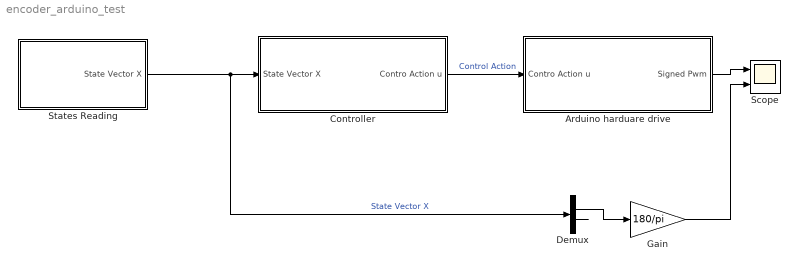
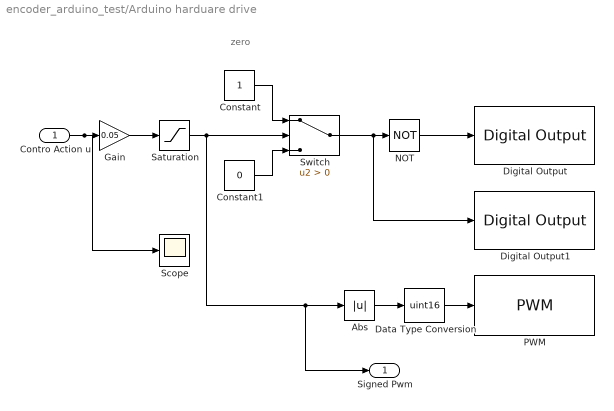
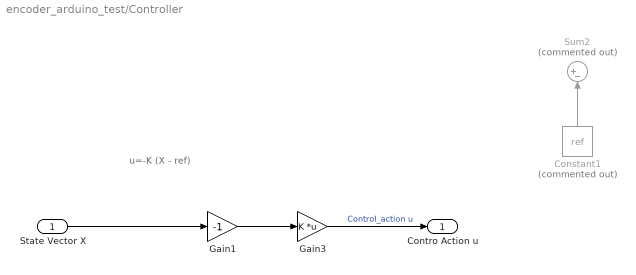
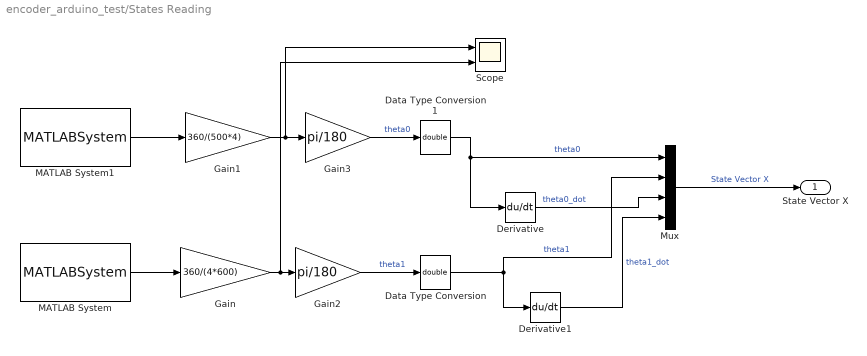
/*
 * Sponsored License - for use in support of a program or activity
 * sponsored by MathWorks.  Not for government, commercial or other
 * non-sponsored organizational use.
 *
 * File: encoder_arduino_test.c
 *
 * Code generated for Simulink model 'encoder_arduino_test'.
 *
 * Model version                  : 18.5
 * Simulink Coder version         : 23.2 (R2023b) 01-Aug-2023
 * C/C++ source code generated on : Fri Dec 22 20:45:58 2023
 *
 * Target selection: ert.tlc
 * Embedded hardware selection: Atmel->AVR
 * Code generation objectives: Unspecified
 * Validation result: Not run
 */

#include "encoder_arduino_test.h"
#include "encoder_arduino_test_private.h"
#include <math.h>
#include "rt_nonfinite.h"
#include "rtwtypes.h"

/* Block signals (default storage) */
B_encoder_arduino_test_T encoder_arduino_test_B;

/* Block states (default storage) */
DW_encoder_arduino_test_T encoder_arduino_test_DW;

/* Real-time model */
static RT_MODEL_encoder_arduino_test_T encoder_arduino_test_M_;
RT_MODEL_encoder_arduino_test_T *const encoder_arduino_test_M =
  &encoder_arduino_test_M_;
void sMultiWordMul(const uint32_T u1[], int16_T n1, const uint32_T u2[], int16_T
                   n2, uint32_T y[], int16_T n)
{
  uint32_T a0;
  uint32_T a1;
  uint32_T b1;
  uint32_T cb;
  uint32_T cb1;
  uint32_T cb2;
  uint32_T u1i;
  uint32_T w01;
  uint32_T w10;
  uint32_T yk;
  int16_T i;
  int16_T j;
  int16_T k;
  int16_T ni;
  boolean_T isNegative1;
  boolean_T isNegative2;
  isNegative1 = ((u1[n1 - 1] & 2147483648UL) != 0UL);
  isNegative2 = ((u2[n2 - 1] & 2147483648UL) != 0UL);
  cb1 = 1UL;

  /* Initialize output to zero */
  for (k = 0; k < n; k++) {
    y[k] = 0UL;
  }

  for (i = 0; i < n1; i++) {
    cb = 0UL;
    u1i = u1[i];
    if (isNegative1) {
      u1i = ~u1i + cb1;
      cb1 = (uint32_T)(u1i < cb1);
    }

    a1 = u1i >> 16U;
    a0 = u1i & 65535UL;
    cb2 = 1UL;
    ni = n - i;
    ni = n2 <= ni ? n2 : ni;
    k = i;
    for (j = 0; j < ni; j++) {
      u1i = u2[j];
      if (isNegative2) {
        u1i = ~u1i + cb2;
        cb2 = (uint32_T)(u1i < cb2);
      }

      b1 = u1i >> 16U;
      u1i &= 65535UL;
      w10 = a1 * u1i;
      w01 = a0 * b1;
      yk = y[k] + cb;
      cb = (uint32_T)(yk < cb);
      u1i *= a0;
      yk += u1i;
      cb += (uint32_T)(yk < u1i);
      u1i = w10 << 16U;
      yk += u1i;
      cb += (uint32_T)(yk < u1i);
      u1i = w01 << 16U;
      yk += u1i;
      cb += (uint32_T)(yk < u1i);
      y[k] = yk;
      cb += w10 >> 16U;
      cb += w01 >> 16U;
      cb += a1 * b1;
      k++;
    }

    if (k < n) {
      y[k] = cb;
    }
  }

  /* Apply sign */
  if (isNegative1 != isNegative2) {
    cb = 1UL;
    for (k = 0; k < n; k++) {
      yk = ~y[k] + cb;
      y[k] = yk;
      cb = (uint32_T)(yk < cb);
    }
  }
}

real_T sMultiWord2Double(const uint32_T u1[], int16_T n1, int16_T e1)
{
  real_T y;
  uint32_T cb;
  uint32_T u1i;
  int16_T exp_0;
  int16_T i;
  y = 0.0;
  exp_0 = e1;
  if ((u1[n1 - 1] & 2147483648UL) != 0UL) {
    cb = 1UL;
    for (i = 0; i < n1; i++) {
      u1i = ~u1[i];
      cb += u1i;
      y -= ldexp(cb, exp_0);
      cb = (uint32_T)(cb < u1i);
      exp_0 += 32;
    }
  } else {
    for (i = 0; i < n1; i++) {
      y += ldexp(u1[i], exp_0);
      exp_0 += 32;
    }
  }

  return y;
}

real_T rt_roundd_snf(real_T u)
{
  real_T y;
  if (fabs(u) < 4.503599627370496E+15) {
    if (u >= 0.5) {
      y = floor(u + 0.5);
    } else if (u > -0.5) {
      y = u * 0.0;
    } else {
      y = ceil(u - 0.5);
    }
  } else {
    y = u;
  }

  return y;
}

/* Model step function */
void encoder_arduino_test_step(void)
{
  {
    real_T lastTime;
    real_T rtb_Abs;
    real_T rtb_theta0_dot;
    real_T *lastU;
    int32_T rtb_MATLABSystem1_0;
    uint32_T tmp;
    uint32_T tmp_0;
    int16_T tmp_2;
    uint16_T u0;
    uint8_T tmp_1;

    /* Gain: '<S3>/Gain' incorporates:
     *  Gain: '<S3>/Gain3'
     */
    encoder_arduino_test_B.Gain = encoder_arduino_test_P.Gain3_Gain;

    /* MATLABSystem: '<S3>/MATLAB System1' */
    if (encoder_arduino_test_DW.obj.SampleTime !=
        encoder_arduino_test_P.MATLABSystem1_SampleTime) {
      encoder_arduino_test_DW.obj.SampleTime =
        encoder_arduino_test_P.MATLABSystem1_SampleTime;
    }

    /*         %% Define output properties */
    /*  Call: int enc_output(int enc) */
    rtb_MATLABSystem1_0 = enc_output(1.0);

    /* Gain: '<S3>/Gain1' incorporates:
     *  MATLABSystem: '<S3>/MATLAB System1'
     */
    tmp = (uint32_T)encoder_arduino_test_P.Gain1_Gain_j;
    tmp_0 = (uint32_T)rtb_MATLABSystem1_0;
    sMultiWordMul(&tmp, 1, &tmp_0, 1, &encoder_arduino_test_B.Gain1.chunks[0U],
                  2);

    /* Gain: '<S3>/Gain3' incorporates:
     *  Gain: '<S3>/Gain1'
     */
    sMultiWordMul(&encoder_arduino_test_P.Gain3_Gain.chunks[0U], 2,
                  &encoder_arduino_test_B.Gain1.chunks[0U], 2,
                  &encoder_arduino_test_B.r.chunks[0U], 4);

    /* DataTypeConversion: '<S3>/Data Type Conversion1' */
    encoder_arduino_test_B.theta0 = sMultiWord2Double
      (&encoder_arduino_test_B.r.chunks[0U], 4, 0) * 3.944304526105059E-31;

    /* MATLABSystem: '<S3>/MATLAB System' */
    if (encoder_arduino_test_DW.obj_p.SampleTime !=
        encoder_arduino_test_P.MATLABSystem_SampleTime) {
      encoder_arduino_test_DW.obj_p.SampleTime =
        encoder_arduino_test_P.MATLABSystem_SampleTime;
    }

    /*         %% Define output properties */
    /*  Call: int enc_output(int enc) */
    rtb_MATLABSystem1_0 = enc_output(0.0);

    /* Gain: '<S3>/Gain' incorporates:
     *  MATLABSystem: '<S3>/MATLAB System'
     */
    tmp = (uint32_T)encoder_arduino_test_P.Gain_Gain_c;
    tmp_0 = (uint32_T)rtb_MATLABSystem1_0;
    sMultiWordMul(&tmp, 1, &tmp_0, 1, &encoder_arduino_test_B.Gain.chunks[0U], 2);

    /* Gain: '<S3>/Gain2' incorporates:
     *  Gain: '<S3>/Gain'
     */
    sMultiWordMul(&encoder_arduino_test_P.Gain2_Gain.chunks[0U], 2,
                  &encoder_arduino_test_B.Gain.chunks[0U], 2,
                  &encoder_arduino_test_B.r1.chunks[0U], 4);

    /* DataTypeConversion: '<S3>/Data Type Conversion' */
    encoder_arduino_test_B.theta1 = sMultiWord2Double
      (&encoder_arduino_test_B.r1.chunks[0U], 4, 0) * 3.944304526105059E-31;

    /* Derivative: '<S3>/Derivative' incorporates:
     *  Derivative: '<S3>/Derivative1'
     */
    rtb_Abs = encoder_arduino_test_M->Timing.t[0];
    if ((encoder_arduino_test_DW.TimeStampA >= rtb_Abs) &&
        (encoder_arduino_test_DW.TimeStampB >= rtb_Abs)) {
      rtb_theta0_dot = 0.0;
    } else {
      lastTime = encoder_arduino_test_DW.TimeStampA;
      lastU = &encoder_arduino_test_DW.LastUAtTimeA;
      if (encoder_arduino_test_DW.TimeStampA <
          encoder_arduino_test_DW.TimeStampB) {
        if (encoder_arduino_test_DW.TimeStampB < rtb_Abs) {
          lastTime = encoder_arduino_test_DW.TimeStampB;
          lastU = &encoder_arduino_test_DW.LastUAtTimeB;
        }
      } else if (encoder_arduino_test_DW.TimeStampA >= rtb_Abs) {
        lastTime = encoder_arduino_test_DW.TimeStampB;
        lastU = &encoder_arduino_test_DW.LastUAtTimeB;
      }

      rtb_theta0_dot = (encoder_arduino_test_B.theta0 - *lastU) / (rtb_Abs -
        lastTime);
    }

    /* End of Derivative: '<S3>/Derivative' */

    /* Derivative: '<S3>/Derivative1' */
    if ((encoder_arduino_test_DW.TimeStampA_p >= rtb_Abs) &&
        (encoder_arduino_test_DW.TimeStampB_n >= rtb_Abs)) {
      rtb_Abs = 0.0;
    } else {
      lastTime = encoder_arduino_test_DW.TimeStampA_p;
      lastU = &encoder_arduino_test_DW.LastUAtTimeA_n;
      if (encoder_arduino_test_DW.TimeStampA_p <
          encoder_arduino_test_DW.TimeStampB_n) {
        if (encoder_arduino_test_DW.TimeStampB_n < rtb_Abs) {
          lastTime = encoder_arduino_test_DW.TimeStampB_n;
          lastU = &encoder_arduino_test_DW.LastUAtTimeB_e;
        }
      } else if (encoder_arduino_test_DW.TimeStampA_p >= rtb_Abs) {
        lastTime = encoder_arduino_test_DW.TimeStampB_n;
        lastU = &encoder_arduino_test_DW.LastUAtTimeB_e;
      }

      rtb_Abs = (encoder_arduino_test_B.theta1 - *lastU) / (rtb_Abs - lastTime);
    }

    /* Gain: '<S2>/Gain3' incorporates:
     *  Gain: '<S2>/Gain1'
     */
    encoder_arduino_test_B.Control_actionu = ((encoder_arduino_test_P.Gain1_Gain
      * encoder_arduino_test_B.theta0 * encoder_arduino_test_P.K[0] +
      encoder_arduino_test_P.Gain1_Gain * encoder_arduino_test_B.theta1 *
      encoder_arduino_test_P.K[1]) + encoder_arduino_test_P.Gain1_Gain *
      rtb_theta0_dot * encoder_arduino_test_P.K[2]) +
      encoder_arduino_test_P.Gain1_Gain * rtb_Abs * encoder_arduino_test_P.K[3];

    /* Gain: '<S1>/Gain' */
    encoder_arduino_test_B.Saturation = encoder_arduino_test_P.Gain_Gain *
      encoder_arduino_test_B.Control_actionu;

    /* Saturate: '<S1>/Saturation' */
    if (encoder_arduino_test_B.Saturation >
        encoder_arduino_test_P.Saturation_UpperSat) {
      /* Gain: '<S1>/Gain' incorporates:
       *  Saturate: '<S1>/Saturation'
       */
      encoder_arduino_test_B.Saturation =
        encoder_arduino_test_P.Saturation_UpperSat;
    } else if (encoder_arduino_test_B.Saturation <
               encoder_arduino_test_P.Saturation_LowerSat) {
      /* Gain: '<S1>/Gain' incorporates:
       *  Saturate: '<S1>/Saturation'
       */
      encoder_arduino_test_B.Saturation =
        encoder_arduino_test_P.Saturation_LowerSat;
    }

    /* End of Saturate: '<S1>/Saturation' */

    /* Gain: '<Root>/Gain' */
    encoder_arduino_test_B.Gain_f = encoder_arduino_test_P.Gain_Gain_h *
      encoder_arduino_test_B.theta1;

    /* Switch: '<S1>/Switch' incorporates:
     *  Constant: '<S1>/Constant'
     *  Constant: '<S1>/Constant1'
     */
    if (encoder_arduino_test_B.Saturation >
        encoder_arduino_test_P.Switch_Threshold) {
      rtb_Abs = encoder_arduino_test_P.Constant_Value;
    } else {
      rtb_Abs = encoder_arduino_test_P.Constant1_Value;
    }

    /* End of Switch: '<S1>/Switch' */

    /* MATLABSystem: '<S1>/Digital Output' incorporates:
     *  Logic: '<S1>/NOT'
     */
    writeDigitalPin(8, (uint8_T)!(rtb_Abs != 0.0));

    /* MATLABSystem: '<S1>/Digital Output1' */
    rtb_Abs = rt_roundd_snf(rtb_Abs);
    if (rtb_Abs < 256.0) {
      if (rtb_Abs >= 0.0) {
        tmp_1 = (uint8_T)rtb_Abs;
      } else {
        tmp_1 = 0U;
      }
    } else {
      tmp_1 = MAX_uint8_T;
    }

    writeDigitalPin(7, tmp_1);

    /* End of MATLABSystem: '<S1>/Digital Output1' */

    /* MATLABSystem: '<S1>/PWM' */
    encoder_arduino_test_DW.obj_h.PWMDriverObj.MW_PWM_HANDLE = MW_PWM_GetHandle
      (6UL);

    /* DataTypeConversion: '<S1>/Data Type Conversion' incorporates:
     *  Abs: '<S1>/Abs'
     */
    rtb_Abs = floor(fabs(encoder_arduino_test_B.Saturation));
    if (rtIsNaN(rtb_Abs) || rtIsInf(rtb_Abs)) {
      /* Start for MATLABSystem: '<S1>/PWM' */
      u0 = 0U;
    } else {
      /* Start for MATLABSystem: '<S1>/PWM' */
      u0 = (uint16_T)fmod(rtb_Abs, 65536.0);
    }

    /* End of DataTypeConversion: '<S1>/Data Type Conversion' */

    /* Start for MATLABSystem: '<S1>/PWM' */
    if (u0 <= 255U) {
      tmp_2 = (int16_T)u0;
    } else {
      tmp_2 = 255;
    }

    /* MATLABSystem: '<S1>/PWM' */
    MW_PWM_SetDutyCycle(encoder_arduino_test_DW.obj_h.PWMDriverObj.MW_PWM_HANDLE,
                        (real_T)tmp_2);
  }

  {
    real_T *lastU;

    /* Update for Derivative: '<S3>/Derivative' */
    if (encoder_arduino_test_DW.TimeStampA == (rtInf)) {
      encoder_arduino_test_DW.TimeStampA = encoder_arduino_test_M->Timing.t[0];
      lastU = &encoder_arduino_test_DW.LastUAtTimeA;
    } else if (encoder_arduino_test_DW.TimeStampB == (rtInf)) {
      encoder_arduino_test_DW.TimeStampB = encoder_arduino_test_M->Timing.t[0];
      lastU = &encoder_arduino_test_DW.LastUAtTimeB;
    } else if (encoder_arduino_test_DW.TimeStampA <
               encoder_arduino_test_DW.TimeStampB) {
      encoder_arduino_test_DW.TimeStampA = encoder_arduino_test_M->Timing.t[0];
      lastU = &encoder_arduino_test_DW.LastUAtTimeA;
    } else {
      encoder_arduino_test_DW.TimeStampB = encoder_arduino_test_M->Timing.t[0];
      lastU = &encoder_arduino_test_DW.LastUAtTimeB;
    }

    *lastU = encoder_arduino_test_B.theta0;

    /* End of Update for Derivative: '<S3>/Derivative' */

    /* Update for Derivative: '<S3>/Derivative1' */
    if (encoder_arduino_test_DW.TimeStampA_p == (rtInf)) {
      encoder_arduino_test_DW.TimeStampA_p = encoder_arduino_test_M->Timing.t[0];
      lastU = &encoder_arduino_test_DW.LastUAtTimeA_n;
    } else if (encoder_arduino_test_DW.TimeStampB_n == (rtInf)) {
      encoder_arduino_test_DW.TimeStampB_n = encoder_arduino_test_M->Timing.t[0];
      lastU = &encoder_arduino_test_DW.LastUAtTimeB_e;
    } else if (encoder_arduino_test_DW.TimeStampA_p <
               encoder_arduino_test_DW.TimeStampB_n) {
      encoder_arduino_test_DW.TimeStampA_p = encoder_arduino_test_M->Timing.t[0];
      lastU = &encoder_arduino_test_DW.LastUAtTimeA_n;
    } else {
      encoder_arduino_test_DW.TimeStampB_n = encoder_arduino_test_M->Timing.t[0];
      lastU = &encoder_arduino_test_DW.LastUAtTimeB_e;
    }

    *lastU = encoder_arduino_test_B.theta1;

    /* End of Update for Derivative: '<S3>/Derivative1' */
  }

  {                                    /* Sample time: [0.0s, 0.0s] */
    extmodeErrorCode_T errorCode = EXTMODE_SUCCESS;
    extmodeSimulationTime_T currentTime = (extmodeSimulationTime_T)
      ((encoder_arduino_test_M->Timing.clockTick0 * 1) + 0)
      ;

    /* Trigger External Mode event */
    errorCode = extmodeEvent(0,currentTime);
    if (errorCode != EXTMODE_SUCCESS) {
      /* Code to handle External Mode event errors
         may be added here */
    }
  }

  {                                    /* Sample time: [0.001s, 0.0s] */
    extmodeErrorCode_T errorCode = EXTMODE_SUCCESS;
    extmodeSimulationTime_T currentTime = (extmodeSimulationTime_T)
      ((encoder_arduino_test_M->Timing.clockTick1 * 1) + 0)
      ;

    /* Trigger External Mode event */
    errorCode = extmodeEvent(1,currentTime);
    if (errorCode != EXTMODE_SUCCESS) {
      /* Code to handle External Mode event errors
         may be added here */
    }
  }

  /* Update absolute time for base rate */
  /* The "clockTick0" counts the number of times the code of this task has
   * been executed. The absolute time is the multiplication of "clockTick0"
   * and "Timing.stepSize0". Size of "clockTick0" ensures timer will not
   * overflow during the application lifespan selected.
   */
  encoder_arduino_test_M->Timing.t[0] =
    ((time_T)(++encoder_arduino_test_M->Timing.clockTick0)) *
    encoder_arduino_test_M->Timing.stepSize0;

  {
    /* Update absolute timer for sample time: [0.001s, 0.0s] */
    /* The "clockTick1" counts the number of times the code of this task has
     * been executed. The resolution of this integer timer is 0.001, which is the step size
     * of the task. Size of "clockTick1" ensures timer will not overflow during the
     * application lifespan selected.
     */
    encoder_arduino_test_M->Timing.clockTick1++;
  }
}
